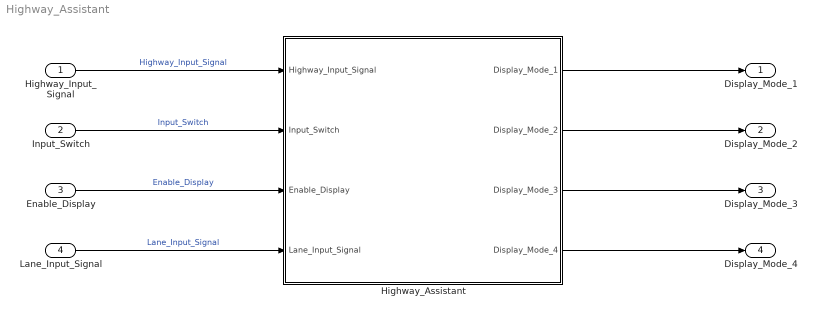
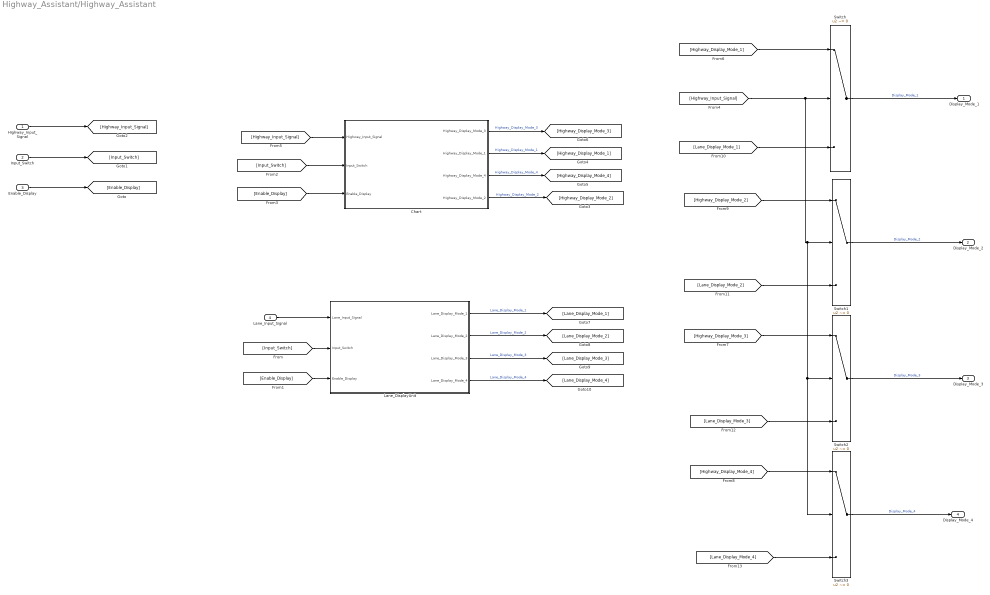
== stateflow chart Highway_Assistant/Chart ==
  state Default
    Highway_Display_Mode_1 = 0;
    Highway_Display_Mode_2 = 0;
    Highway_Display_Mode_3 = 0;
    Highway_Display_Mode_4 = 0;
  state HW_Mode_ON_
    Highway_Display_Mode_1 = 213;
    Highway_Display_Mode_2 = 183;
    Highway_Display_Mode_3 = 9;
    Highway_Display_Mode_4 = 94;
  state HW_Mode_OFF_
    Highway_Display_Mode_1 = 232;
    Highway_Display_Mode_2 = 183;
    Highway_Display_Mode_3 = 41;
    Highway_Display_Mode_4 = 94;
  (default) -> Default
  Default -> HW_Mode_OFF_ [order 1] : [Highway_Input_Signal == 1 && Enable_Display == 0 && Input_Switch == 1]
  Default -> HW_Mode_ON_ [order 2] : [Highway_Input_Signal == 1 && Enable_Display == 1 && Input_Switch == 1]
  HW_Mode_OFF_ -> HW_Mode_ON_ [order 1] : [Enable_Display == 1]
  HW_Mode_ON_ -> HW_Mode_OFF_ [order 1] : [Enable_Display == 0]
  HW_Mode_ON_ -> (junction 6) [order 2]
  HW_Mode_OFF_ -> (junction 5) [order 2]
  data: Highway_Display_Mode_3 output uint8; Highway_Input_Signal input; Input_Switch input; Enable_Display input; Highway_Display_Mode_1 output uint8; Highway_Display_Mode_4 output uint8; Highway_Display_Mode_2 output uint8

== stateflow chart Highway_Assistant/Lane_DisplayUnit ==
  state Default
    Lane_Display_Mode_1 = 0;
    Lane_Display_Mode_2 = 0;
    Lane_Display_Mode_3 = 0;
    Lane_Display_Mode_4 = 0;
  note: [Lane_Input_Signal == 6 && Enable_Display == 1 && Input_Switch == 1]
  state Lane_Mode_ON
    Lane_Display_Mode_1 = 127;
    Lane_Display_Mode_2 = 248;
    Lane_Display_Mode_3 = 186;
    Lane_Display_Mode_4 = 84;
  state Lane_Mode_OFF
    Lane_Display_Mode_1 = 132;
    Lane_Display_Mode_2 = 185;
    Lane_Display_Mode_3 = 54;
    Lane_Display_Mode_4 = 67;
  (default) -> Default
  Default -> state1 [order 1] : [Lane_Input_Signal == 6 && Enable_Display == 0 && Input_Switch == 1]
  Default -> state4 [order 2]
  state1 -> state4 [order 1] : [Enable_Display == 1]
  state4 -> state1 [order 1] : [Enable_Display == 0]
  state1 -> (junction 15) [order 2]
  state4 -> (junction 5) [order 2]
  data: Lane_Input_Signal input uint8; Input_Switch input uint8; Lane_Display_Mode_1 output uint8; Lane_Display_Mode_2 output uint8; Lane_Display_Mode_3 output uint8; Enable_Display input uint8; Lane_Display_Mode_4 output uint8

/*
 * File: Highway_Assistant.c
 *
 * Code generated for Simulink model 'Highway_Assistant'.
 *
 * Model version                  : 1.17
 * Simulink Coder version         : 23.2 (R2023b) 01-Aug-2023
 * C/C++ source code generated on : Tue Apr 21 17:56:37 2026
 *
 * Target selection: autosar.tlc
 * Embedded hardware selection: Intel->x86-64 (Windows64)
 * Code generation objectives: Unspecified
 * Validation result: Not run
 */

#include "Highway_Assistant.h"
#include "Platform_Types.h"

/* Named constants for Chart: '<S1>/Chart' */
#define Highway_Assista_IN_HW_Mode_OFF_ ((uint8)2U)
#define Highway_Assistan_IN_HW_Mode_ON_ ((uint8)3U)
#define Highway_Assistant_IN_Default   ((uint8)1U)

/* Named constants for Chart: '<S1>/Lane_DisplayUnit' */
#define Highway_Assist_IN_Lane_Mode_OFF ((uint8)2U)
#define Highway_Assista_IN_Lane_Mode_ON ((uint8)3U)

/* PublicStructure Variables for Internal Data */
ARID_DEF_Highway_Assistant_T Highway_Assistant_ARID_DEF;/* '<S1>/Lane_DisplayUnit' */

/* Model step function */
void Highway_Assistant_Step(void)
{
  sint32 tmp;
  sint32 tmp_0;
  sint32 tmp_1;
  uint8 rtb_Highway_Display_Mode_1;
  uint8 rtb_Highway_Display_Mode_2;
  uint8 rtb_Highway_Display_Mode_3;
  uint8 rtb_Highway_Display_Mode_4;
  uint8 rtb_Lane_Display_Mode_1;
  uint8 rtb_Lane_Display_Mode_2;
  uint8 rtb_Lane_Display_Mode_3;
  uint8 rtb_Lane_Display_Mode_4;

  /* Chart: '<S1>/Chart' incorporates:
   *  Inport: '<Root>/Enable_Display'
   *  Inport: '<Root>/Highway_Input_Signal'
   *  Inport: '<Root>/Input_Switch'
   */
  if (Highway_Assistant_ARID_DEF.is_active_c2_Highway_Assistant == 0U) {
    Highway_Assistant_ARID_DEF.is_active_c2_Highway_Assistant = 1U;
    Highway_Assistant_ARID_DEF.is_c2_Highway_Assistant =
      Highway_Assistant_IN_Default;
    rtb_Highway_Display_Mode_1 = 0U;
    rtb_Highway_Display_Mode_2 = 0U;
    rtb_Highway_Display_Mode_3 = 0U;
    rtb_Highway_Display_Mode_4 = 0U;
  } else {
    switch (Highway_Assistant_ARID_DEF.is_c2_Highway_Assistant) {
     case Highway_Assistant_IN_Default:
      tmp =
        Rte_IRead_Highway_Assistant_Step_Highway_Input_Signal_Highway_Input_Signal
        ();
      tmp_0 = Rte_IRead_Highway_Assistant_Step_Enable_Display_Enable_Display();
      tmp_1 = Rte_IRead_Highway_Assistant_Step_Input_Switch_Input_Switch();
      if ((tmp == 1) && (tmp_0 == 0) && (tmp_1 == 1)) {
        Highway_Assistant_ARID_DEF.is_c2_Highway_Assistant =
          Highway_Assista_IN_HW_Mode_OFF_;
        rtb_Highway_Display_Mode_1 = 232U;
        rtb_Highway_Display_Mode_2 = 183U;
        rtb_Highway_Display_Mode_3 = 41U;
        rtb_Highway_Display_Mode_4 = 94U;
      } else if ((tmp == 1) && (tmp_0 == 1) && (tmp_1 == 1)) {
        Highway_Assistant_ARID_DEF.is_c2_Highway_Assistant =
          Highway_Assistan_IN_HW_Mode_ON_;
        rtb_Highway_Display_Mode_1 = 213U;
        rtb_Highway_Display_Mode_2 = 183U;
        rtb_Highway_Display_Mode_3 = 9U;
        rtb_Highway_Display_Mode_4 = 94U;
      } else {
        rtb_Highway_Display_Mode_1 = 0U;
        rtb_Highway_Display_Mode_2 = 0U;
        rtb_Highway_Display_Mode_3 = 0U;
        rtb_Highway_Display_Mode_4 = 0U;
      }
      break;

     case Highway_Assista_IN_HW_Mode_OFF_:
      if (Rte_IRead_Highway_Assistant_Step_Enable_Display_Enable_Display() == 1)
      {
        Highway_Assistant_ARID_DEF.is_c2_Highway_Assistant =
          Highway_Assistan_IN_HW_Mode_ON_;
        rtb_Highway_Display_Mode_1 = 213U;
        rtb_Highway_Display_Mode_2 = 183U;
        rtb_Highway_Display_Mode_3 = 9U;
        rtb_Highway_Display_Mode_4 = 94U;
      } else {
        rtb_Highway_Display_Mode_1 = 232U;
        rtb_Highway_Display_Mode_2 = 183U;
        rtb_Highway_Display_Mode_3 = 41U;
        rtb_Highway_Display_Mode_4 = 94U;
      }
      break;

     default:
      /* case IN_HW_Mode_ON_: */
      if (Rte_IRead_Highway_Assistant_Step_Enable_Display_Enable_Display() == 0)
      {
        Highway_Assistant_ARID_DEF.is_c2_Highway_Assistant =
          Highway_Assista_IN_HW_Mode_OFF_;
        rtb_Highway_Display_Mode_1 = 232U;
        rtb_Highway_Display_Mode_2 = 183U;
        rtb_Highway_Display_Mode_3 = 41U;
        rtb_Highway_Display_Mode_4 = 94U;
      } else {
        rtb_Highway_Display_Mode_1 = 213U;
        rtb_Highway_Display_Mode_2 = 183U;
        rtb_Highway_Display_Mode_3 = 9U;
        rtb_Highway_Display_Mode_4 = 94U;
      }
      break;
    }
  }

  /* End of Chart: '<S1>/Chart' */

  /* Chart: '<S1>/Lane_DisplayUnit' incorporates:
   *  Inport: '<Root>/Enable_Display'
   *  Inport: '<Root>/Input_Switch'
   *  Inport: '<Root>/Lane_Input_Signal'
   */
  if (Highway_Assistant_ARID_DEF.is_active_c3_Highway_Assistant == 0U) {
    Highway_Assistant_ARID_DEF.is_active_c3_Highway_Assistant = 1U;
    Highway_Assistant_ARID_DEF.is_c3_Highway_Assistant =
      Highway_Assistant_IN_Default;
    rtb_Lane_Display_Mode_1 = 0U;
    rtb_Lane_Display_Mode_2 = 0U;
    rtb_Lane_Display_Mode_3 = 0U;
    rtb_Lane_Display_Mode_4 = 0U;
  } else {
    switch (Highway_Assistant_ARID_DEF.is_c3_Highway_Assistant) {
     case Highway_Assistant_IN_Default:
      if ((Rte_IRead_Highway_Assistant_Step_Lane_Input_Signal_Lane_Input_Signal()
           == 6) &&
          (Rte_IRead_Highway_Assistant_Step_Enable_Display_Enable_Display() == 0)
          && (Rte_IRead_Highway_Assistant_Step_Input_Switch_Input_Switch() == 1))
      {
        Highway_Assistant_ARID_DEF.is_c3_Highway_Assistant =
          Highway_Assist_IN_Lane_Mode_OFF;
        rtb_Lane_Display_Mode_1 = 132U;
        rtb_Lane_Display_Mode_2 = 185U;
        rtb_Lane_Display_Mode_3 = 54U;
        rtb_Lane_Display_Mode_4 = 67U;
      } else {
        Highway_Assistant_ARID_DEF.is_c3_Highway_Assistant =
          Highway_Assista_IN_Lane_Mode_ON;
        rtb_Lane_Display_Mode_1 = 127U;
        rtb_Lane_Display_Mode_2 = 248U;
        rtb_Lane_Display_Mode_3 = 186U;
        rtb_Lane_Display_Mode_4 = 84U;
      }
      break;

     case Highway_Assist_IN_Lane_Mode_OFF:
      if (Rte_IRead_Highway_Assistant_Step_Enable_Display_Enable_Display() == 1)
      {
        Highway_Assistant_ARID_DEF.is_c3_Highway_Assistant =
          Highway_Assista_IN_Lane_Mode_ON;
        rtb_Lane_Display_Mode_1 = 127U;
        rtb_Lane_Display_Mode_2 = 248U;
        rtb_Lane_Display_Mode_3 = 186U;
        rtb_Lane_Display_Mode_4 = 84U;
      } else {
        rtb_Lane_Display_Mode_1 = 132U;
        rtb_Lane_Display_Mode_2 = 185U;
        rtb_Lane_Display_Mode_3 = 54U;
        rtb_Lane_Display_Mode_4 = 67U;
      }
      break;

     default:
      /* case IN_Lane_Mode_ON: */
      if (Rte_IRead_Highway_Assistant_Step_Enable_Display_Enable_Display() == 0)
      {
        Highway_Assistant_ARID_DEF.is_c3_Highway_Assistant =
          Highway_Assist_IN_Lane_Mode_OFF;
        rtb_Lane_Display_Mode_1 = 132U;
        rtb_Lane_Display_Mode_2 = 185U;
        rtb_Lane_Display_Mode_3 = 54U;
        rtb_Lane_Display_Mode_4 = 67U;
      } else {
        rtb_Lane_Display_Mode_1 = 127U;
        rtb_Lane_Display_Mode_2 = 248U;
        rtb_Lane_Display_Mode_3 = 186U;
        rtb_Lane_Display_Mode_4 = 84U;
      }
      break;
    }
  }

  /* End of Chart: '<S1>/Lane_DisplayUnit' */

  /* Switch: '<S1>/Switch' incorporates:
   *  Inport: '<Root>/Highway_Input_Signal'
   *  Switch: '<S1>/Switch1'
   *  Switch: '<S1>/Switch2'
   *  Switch: '<S1>/Switch3'
   */
  tmp =
    Rte_IRead_Highway_Assistant_Step_Highway_Input_Signal_Highway_Input_Signal();
  if (tmp != 0) {
    rtb_Lane_Display_Mode_1 = rtb_Highway_Display_Mode_1;
  }

  /* Outport: '<Root>/Display_Mode_1' incorporates:
   *  Switch: '<S1>/Switch'
   */
  Rte_IWrite_Highway_Assistant_Step_Display_Mode_1_Display_Mode_1
    (rtb_Lane_Display_Mode_1);

  /* Switch: '<S1>/Switch1' */
  if (tmp != 0) {
    rtb_Lane_Display_Mode_2 = rtb_Highway_Display_Mode_2;
  }

  /* Outport: '<Root>/Display_Mode_2' incorporates:
   *  Switch: '<S1>/Switch1'
   */
  Rte_IWrite_Highway_Assistant_Step_Display_Mode_2_Display_Mode_2
    (rtb_Lane_Display_Mode_2);

  /* Switch: '<S1>/Switch2' */
  if (tmp != 0) {
    rtb_Lane_Display_Mode_3 = rtb_Highway_Display_Mode_3;
  }

  /* Outport: '<Root>/Display_Mode_3' incorporates:
   *  Switch: '<S1>/Switch2'
   */
  Rte_IWrite_Highway_Assistant_Step_Display_Mode_3_Display_Mode_3
    (rtb_Lane_Display_Mode_3);

  /* Switch: '<S1>/Switch3' */
  if (tmp != 0) {
    rtb_Lane_Display_Mode_4 = rtb_Highway_Display_Mode_4;
  }

  /* Outport: '<Root>/Display_Mode_4' incorporates:
   *  Switch: '<S1>/Switch3'
   */
  Rte_IWrite_Highway_Assistant_Step_Display_Mode_4_Display_Mode_4
    (rtb_Lane_Display_Mode_4);
}
